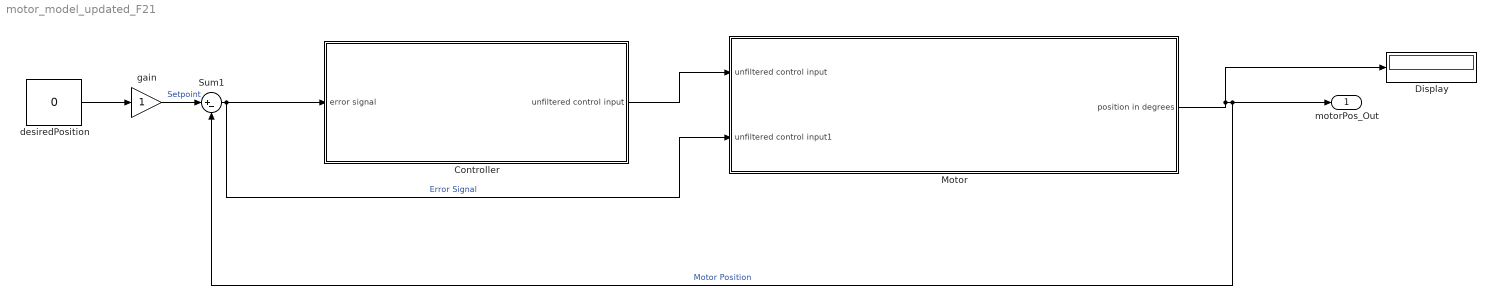
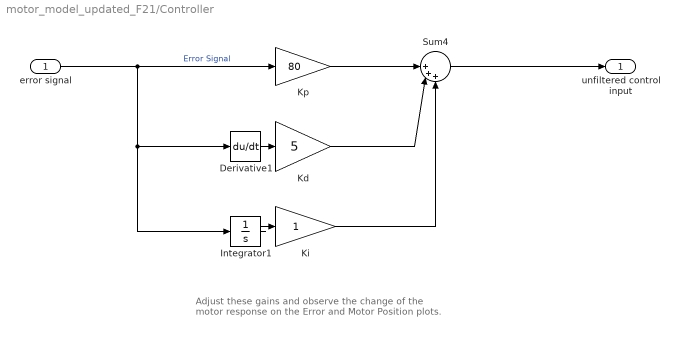
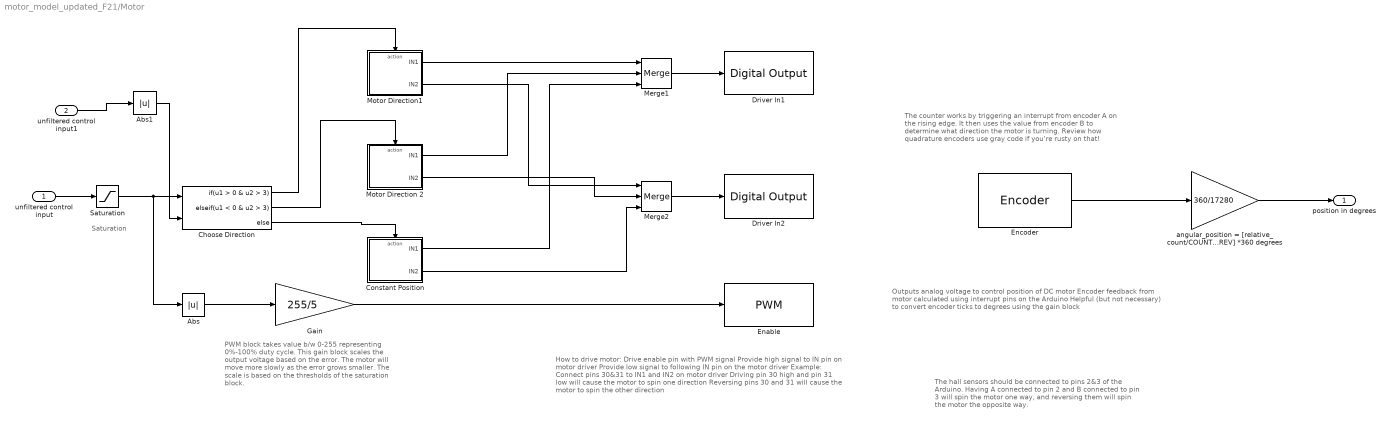
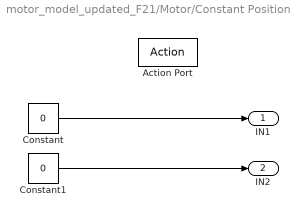
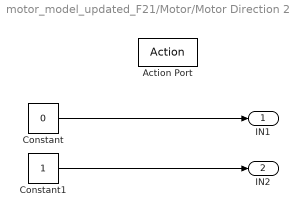
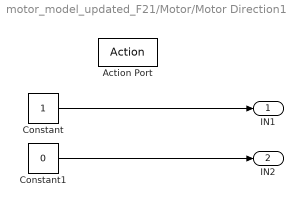
/*
 * motor_model_updated_F21.c
 *
 * Academic License - for use in teaching, academic research, and meeting
 * course requirements at degree granting institutions only.  Not for
 * government, commercial, or other organizational use.
 *
 * Code generation for model "motor_model_updated_F21".
 *
 * Model version              : 4.9
 * Simulink Coder version : 9.6 (R2021b) 14-May-2021
 * C source code generated on : Wed Mar 16 17:14:59 2022
 *
 * Target selection: ert.tlc
 * Note: GRT includes extra infrastructure and instrumentation for prototyping
 * Embedded hardware selection: Atmel->AVR
 * Code generation objectives: Unspecified
 * Validation result: Not run
 */

#include "motor_model_updated_F21.h"
#include "motor_model_updated_F21_private.h"

/* Block signals (default storage) */
B_motor_model_updated_F21_T motor_model_updated_F21_B;

/* Continuous states */
X_motor_model_updated_F21_T motor_model_updated_F21_X;

/* Block states (default storage) */
DW_motor_model_updated_F21_T motor_model_updated_F21_DW;

/* External outputs (root outports fed by signals with default storage) */
ExtY_motor_model_updated_F21_T motor_model_updated_F21_Y;

/* Real-time model */
static RT_MODEL_motor_model_updated__T motor_model_updated_F21_M_;
RT_MODEL_motor_model_updated__T *const motor_model_updated_F21_M =
  &motor_model_updated_F21_M_;
const int64m_T motor_model_updated_F21_sfix64_ = { { 0UL, 0UL }/* chunks */
};

void sMultiWordMul(const uint32_T u1[], int16_T n1, const uint32_T u2[], int16_T
                   n2, uint32_T y[], int16_T n)
{
  uint32_T a0;
  uint32_T a1;
  uint32_T b1;
  uint32_T cb;
  uint32_T cb1;
  uint32_T cb2;
  uint32_T u1i;
  uint32_T w01;
  uint32_T w10;
  uint32_T yk;
  int16_T i;
  int16_T j;
  int16_T k;
  int16_T ni;
  boolean_T isNegative1;
  boolean_T isNegative2;
  isNegative1 = ((u1[n1 - 1] & 2147483648UL) != 0UL);
  isNegative2 = ((u2[n2 - 1] & 2147483648UL) != 0UL);
  cb1 = 1UL;

  /* Initialize output to zero */
  for (k = 0; k < n; k++) {
    y[k] = 0UL;
  }

  for (i = 0; i < n1; i++) {
    cb = 0UL;
    u1i = u1[i];
    if (isNegative1) {
      u1i = ~u1i + cb1;
      cb1 = (uint32_T)(u1i < cb1);
    }

    a1 = u1i >> 16U;
    a0 = u1i & 65535UL;
    cb2 = 1UL;
    ni = n - i;
    ni = n2 <= ni ? n2 : ni;
    k = i;
    for (j = 0; j < ni; j++) {
      u1i = u2[j];
      if (isNegative2) {
        u1i = ~u1i + cb2;
        cb2 = (uint32_T)(u1i < cb2);
      }

      b1 = u1i >> 16U;
      u1i &= 65535UL;
      w10 = a1 * u1i;
      w01 = a0 * b1;
      yk = y[k] + cb;
      cb = (uint32_T)(yk < cb);
      u1i *= a0;
      yk += u1i;
      cb += (yk < u1i);
      u1i = w10 << 16U;
      yk += u1i;
      cb += (yk < u1i);
      u1i = w01 << 16U;
      yk += u1i;
      cb += (yk < u1i);
      y[k] = yk;
      cb += w10 >> 16U;
      cb += w01 >> 16U;
      cb += a1 * b1;
      k++;
    }

    if (k < n) {
      y[k] = cb;
    }
  }

  /* Apply sign */
  if (isNegative1 != isNegative2) {
    cb = 1UL;
    for (k = 0; k < n; k++) {
      yk = ~y[k] + cb;
      y[k] = yk;
      cb = (uint32_T)(yk < cb);
    }
  }
}

real_T sMultiWord2Double(const uint32_T u1[], int16_T n1, int16_T e1)
{
  real_T y;
  uint32_T cb;
  uint32_T u1i;
  int16_T exp_0;
  int16_T i;
  y = 0.0;
  exp_0 = e1;
  if ((u1[n1 - 1] & 2147483648UL) != 0UL) {
    cb = 1UL;
    for (i = 0; i < n1; i++) {
      u1i = ~u1[i];
      cb += u1i;
      y -= ldexp(cb, exp_0);
      cb = (uint32_T)(cb < u1i);
      exp_0 += 32;
    }
  } else {
    for (i = 0; i < n1; i++) {
      y += ldexp(u1[i], exp_0);
      exp_0 += 32;
    }
  }

  return y;
}

/*
 * This function updates continuous states using the ODE4 fixed-step
 * solver algorithm
 */
static void rt_ertODEUpdateContinuousStates(RTWSolverInfo *si )
{
  time_T t = rtsiGetT(si);
  time_T tnew = rtsiGetSolverStopTime(si);
  time_T h = rtsiGetStepSize(si);
  real_T *x = rtsiGetContStates(si);
  ODE4_IntgData *id = (ODE4_IntgData *)rtsiGetSolverData(si);
  real_T *y = id->y;
  real_T *f0 = id->f[0];
  real_T *f1 = id->f[1];
  real_T *f2 = id->f[2];
  real_T *f3 = id->f[3];
  real_T temp;
  int_T i;
  int_T nXc = 1;
  rtsiSetSimTimeStep(si,MINOR_TIME_STEP);

  /* Save the state values at time t in y, we'll use x as ynew. */
  (void) memcpy(y, x,
                (uint_T)nXc*sizeof(real_T));

  /* Assumes that rtsiSetT and ModelOutputs are up-to-date */
  /* f0 = f(t,y) */
  rtsiSetdX(si, f0);
  motor_model_updated_F21_derivatives();

  /* f1 = f(t + (h/2), y + (h/2)*f0) */
  temp = 0.5 * h;
  for (i = 0; i < nXc; i++) {
    x[i] = y[i] + (temp*f0[i]);
  }

  rtsiSetT(si, t + temp);
  rtsiSetdX(si, f1);
  motor_model_updated_F21_step();
  motor_model_updated_F21_derivatives();

  /* f2 = f(t + (h/2), y + (h/2)*f1) */
  for (i = 0; i < nXc; i++) {
    x[i] = y[i] + (temp*f1[i]);
  }

  rtsiSetdX(si, f2);
  motor_model_updated_F21_step();
  motor_model_updated_F21_derivatives();

  /* f3 = f(t + h, y + h*f2) */
  for (i = 0; i < nXc; i++) {
    x[i] = y[i] + (h*f2[i]);
  }

  rtsiSetT(si, tnew);
  rtsiSetdX(si, f3);
  motor_model_updated_F21_step();
  motor_model_updated_F21_derivatives();

  /* tnew = t + h
     ynew = y + (h/6)*(f0 + 2*f1 + 2*f2 + 2*f3) */
  temp = h / 6.0;
  for (i = 0; i < nXc; i++) {
    x[i] = y[i] + temp*(f0[i] + 2.0*f1[i] + 2.0*f2[i] + f3[i]);
  }

  rtsiSetSimTimeStep(si,MAJOR_TIME_STEP);
}

/*
 * Output and update for action system:
 *    '<S2>/Motor Direction1'
 *    '<S2>/Motor Direction 2'
 *    '<S2>/Constant Position'
 */
void motor_model_upd_MotorDirection1(RT_MODEL_motor_model_updated__T * const
  motor_model_updated_F21_M, real_T *rty_IN1, real_T *rty_IN2,
  P_MotorDirection1_motor_model_T *localP)
{
  if (rtmIsMajorTimeStep(motor_model_updated_F21_M)) {
    /* Constant: '<S5>/Constant' */
    *rty_IN1 = localP->Constant_Value;

    /* Constant: '<S5>/Constant1' */
    *rty_IN2 = localP->Constant1_Value;
  }
}

real_T rt_roundd_snf(real_T u)
{
  real_T y;
  if (fabs(u) < 4.503599627370496E+15) {
    if (u >= 0.5) {
      y = floor(u + 0.5);
    } else if (u > -0.5) {
      y = u * 0.0;
    } else {
      y = ceil(u - 0.5);
    }
  } else {
    y = u;
  }

  return y;
}

/* Model step function */
void motor_model_updated_F21_step(void)
{
  /* local block i/o variables */
  real_T rtb_Merge1;
  real_T rtb_Merge2;
  if (rtmIsMajorTimeStep(motor_model_updated_F21_M)) {
    /* set solver stop time */
    if (!(motor_model_updated_F21_M->Timing.clockTick0+1)) {
      rtsiSetSolverStopTime(&motor_model_updated_F21_M->solverInfo,
                            ((motor_model_updated_F21_M->Timing.clockTickH0 + 1)
        * motor_model_updated_F21_M->Timing.stepSize0 * 4294967296.0));
    } else {
      rtsiSetSolverStopTime(&motor_model_updated_F21_M->solverInfo,
                            ((motor_model_updated_F21_M->Timing.clockTick0 + 1) *
        motor_model_updated_F21_M->Timing.stepSize0 +
        motor_model_updated_F21_M->Timing.clockTickH0 *
        motor_model_updated_F21_M->Timing.stepSize0 * 4294967296.0));
    }
  }                                    /* end MajorTimeStep */

  /* Update absolute time of base rate at minor time step */
  if (rtmIsMinorTimeStep(motor_model_updated_F21_M)) {
    motor_model_updated_F21_M->Timing.t[0] = rtsiGetT
      (&motor_model_updated_F21_M->solverInfo);
  }

  {
    codertarget_arduinobase_inter_T *obj;
    int64m_T *tmp_2;
    real_T rtb_Abs1;
    real_T *lastU;
    int32_T rtb_Encoder_0;
    uint32_T tmp;
    uint32_T tmp_0;
    uint8_T tmp_1;

    /* Reset subsysRan breadcrumbs */
    srClearBC
      (motor_model_updated_F21_DW.MotorDirection1.MotorDirection1_SubsysRanBC);

    /* MATLABSystem: '<S2>/Encoder' */
    if (motor_model_updated_F21_DW.obj.SampleTime !=
        motor_model_updated_F21_P.Encoder_SampleTime) {
      motor_model_updated_F21_DW.obj.SampleTime =
        motor_model_updated_F21_P.Encoder_SampleTime;
    }

    if (motor_model_updated_F21_DW.obj.TunablePropsChanged) {
      motor_model_updated_F21_DW.obj.TunablePropsChanged = false;
    }

    MW_EncoderRead(motor_model_updated_F21_DW.obj.Index, &rtb_Encoder_0);

    /* Gain: '<S2>/angular_position =  [relative_count//COUNTS_PER_REV] *360 degrees' incorporates:
     *  MATLABSystem: '<S2>/Encoder'
     */
    tmp = (uint32_T)motor_model_updated_F21_P.angular_positionrelative_countC;
    tmp_0 = (uint32_T)rtb_Encoder_0;
    sMultiWordMul(&tmp, 1, &tmp_0, 1,
                  &motor_model_updated_F21_B.angular_positionrelative_countC.chunks
                  [0U], 2);

    /* Outport: '<Root>/motorPos_Out' incorporates:
     *  Gain: '<S2>/angular_position =  [relative_count//COUNTS_PER_REV] *360 degrees'
     */
    motor_model_updated_F21_Y.motorPos_Out =
      motor_model_updated_F21_B.angular_positionrelative_countC;
    if (rtmIsMajorTimeStep(motor_model_updated_F21_M)) {
      /* Gain: '<Root>/gain' incorporates:
       *  Constant: '<Root>/desiredPosition'
       */
      motor_model_updated_F21_B.Setpoint = motor_model_updated_F21_P.gain_Gain *
        motor_model_updated_F21_P.desiredPosition_Value;
    }

    /* Sum: '<Root>/Sum1' incorporates:
     *  Gain: '<S2>/angular_position =  [relative_count//COUNTS_PER_REV] *360 degrees'
     */
    tmp_2 = &motor_model_updated_F21_B.angular_positionrelative_countC;

    /* Sum: '<Root>/Sum1' */
    motor_model_updated_F21_B.ErrorSignal = motor_model_updated_F21_B.Setpoint -
      sMultiWord2Double(&tmp_2->chunks[0U], 2, 0) * 1.4551915228366852E-11;

    /* Derivative: '<S1>/Derivative1' */
    motor_model_updated_F21_B.Abs = motor_model_updated_F21_M->Timing.t[0];
    if ((motor_model_updated_F21_DW.TimeStampA >= motor_model_updated_F21_B.Abs)
        && (motor_model_updated_F21_DW.TimeStampB >=
            motor_model_updated_F21_B.Abs)) {
      motor_model_updated_F21_B.Abs = 0.0;
    } else {
      rtb_Abs1 = motor_model_updated_F21_DW.TimeStampA;
      lastU = &motor_model_updated_F21_DW.LastUAtTimeA;
      if (motor_model_updated_F21_DW.TimeStampA <
          motor_model_updated_F21_DW.TimeStampB) {
        if (motor_model_updated_F21_DW.TimeStampB <
            motor_model_updated_F21_B.Abs) {
          rtb_Abs1 = motor_model_updated_F21_DW.TimeStampB;
          lastU = &motor_model_updated_F21_DW.LastUAtTimeB;
        }
      } else if (motor_model_updated_F21_DW.TimeStampA >=
                 motor_model_updated_F21_B.Abs) {
        rtb_Abs1 = motor_model_updated_F21_DW.TimeStampB;
        lastU = &motor_model_updated_F21_DW.LastUAtTimeB;
      }

      motor_model_updated_F21_B.Abs = (motor_model_updated_F21_B.ErrorSignal -
        *lastU) / (motor_model_updated_F21_B.Abs - rtb_Abs1);
    }

    /* End of Derivative: '<S1>/Derivative1' */

    /* Sum: '<S1>/Sum4' incorporates:
     *  Gain: '<S1>/Kd'
     *  Gain: '<S1>/Ki'
     *  Gain: '<S1>/Kp'
     *  Integrator: '<S1>/Integrator1'
     */
    motor_model_updated_F21_B.Abs = (motor_model_updated_F21_P.Kp_Gain *
      motor_model_updated_F21_B.ErrorSignal + motor_model_updated_F21_P.Kd_Gain *
      motor_model_updated_F21_B.Abs) + motor_model_updated_F21_P.Ki_Gain *
      motor_model_updated_F21_X.Integrator1_CSTATE;

    /* Saturate: '<S2>/Saturation' */
    if (motor_model_updated_F21_B.Abs >
        motor_model_updated_F21_P.Saturation_UpperSat) {
      motor_model_updated_F21_B.Abs =
        motor_model_updated_F21_P.Saturation_UpperSat;
    } else if (motor_model_updated_F21_B.Abs <
               motor_model_updated_F21_P.Saturation_LowerSat) {
      motor_model_updated_F21_B.Abs =
        motor_model_updated_F21_P.Saturation_LowerSat;
    }

    /* End of Saturate: '<S2>/Saturation' */

    /* Abs: '<S2>/Abs1' */
    rtb_Abs1 = fabs(motor_model_updated_F21_B.ErrorSignal);

    /* If: '<S2>/Choose Direction' */
    if (rtmIsMajorTimeStep(motor_model_updated_F21_M)) {
      if ((motor_model_updated_F21_B.Abs > 0.0) && (rtb_Abs1 > 3.0)) {
        motor_model_updated_F21_DW.ChooseDirection_ActiveSubsystem = 0;
      } else if ((motor_model_updated_F21_B.Abs < 0.0) && (rtb_Abs1 > 3.0)) {
        motor_model_updated_F21_DW.ChooseDirection_ActiveSubsystem = 1;
      } else {
        motor_model_updated_F21_DW.ChooseDirection_ActiveSubsystem = 2;
      }
    }

    switch (motor_model_updated_F21_DW.ChooseDirection_ActiveSubsystem) {
     case 0:
      /* Outputs for IfAction SubSystem: '<S2>/Motor Direction1' incorporates:
       *  ActionPort: '<S5>/Action Port'
       */
      motor_model_upd_MotorDirection1(motor_model_updated_F21_M, &rtb_Merge1,
        &rtb_Merge2, &motor_model_updated_F21_P.MotorDirection1);
      if (rtmIsMajorTimeStep(motor_model_updated_F21_M)) {
        srUpdateBC
          (motor_model_updated_F21_DW.MotorDirection1.MotorDirection1_SubsysRanBC);
      }

      /* End of Outputs for SubSystem: '<S2>/Motor Direction1' */
      break;

     case 1:
      /* Outputs for IfAction SubSystem: '<S2>/Motor Direction 2' incorporates:
       *  ActionPort: '<S4>/Action Port'
       */
      motor_model_upd_MotorDirection1(motor_model_updated_F21_M, &rtb_Merge1,
        &rtb_Merge2, &motor_model_updated_F21_P.MotorDirection2);
      if (rtmIsMajorTimeStep(motor_model_updated_F21_M)) {
        srUpdateBC
          (motor_model_updated_F21_DW.MotorDirection2.MotorDirection1_SubsysRanBC);
      }

      /* End of Outputs for SubSystem: '<S2>/Motor Direction 2' */
      break;

     case 2:
      /* Outputs for IfAction SubSystem: '<S2>/Constant Position' incorporates:
       *  ActionPort: '<S3>/Action Port'
       */
      motor_model_upd_MotorDirection1(motor_model_updated_F21_M, &rtb_Merge1,
        &rtb_Merge2, &motor_model_updated_F21_P.ConstantPosition);
      if (rtmIsMajorTimeStep(motor_model_updated_F21_M)) {
        srUpdateBC
          (motor_model_updated_F21_DW.ConstantPosition.MotorDirection1_SubsysRanBC);
      }

      /* End of Outputs for SubSystem: '<S2>/Constant Position' */
      break;
    }

    /* End of If: '<S2>/Choose Direction' */

    /* MATLABSystem: '<S2>/Enable' */
    obj = &motor_model_updated_F21_DW.obj_b;
    obj->PWMDriverObj.MW_PWM_HANDLE = MW_PWM_GetHandle(5UL);

    /* Gain: '<S2>/Gain' incorporates:
     *  Abs: '<S2>/Abs'
     */
    motor_model_updated_F21_B.Abs = motor_model_updated_F21_P.Gain_Gain * fabs
      (motor_model_updated_F21_B.Abs);

    /* MATLABSystem: '<S2>/Enable' */
    if (!(motor_model_updated_F21_B.Abs <= 255.0)) {
      motor_model_updated_F21_B.Abs = 255.0;
    }

    if (!(motor_model_updated_F21_B.Abs >= 0.0)) {
      motor_model_updated_F21_B.Abs = 0.0;
    }

    MW_PWM_SetDutyCycle
      (motor_model_updated_F21_DW.obj_b.PWMDriverObj.MW_PWM_HANDLE,
       motor_model_updated_F21_B.Abs);
    if (rtmIsMajorTimeStep(motor_model_updated_F21_M)) {
      /* MATLABSystem: '<S2>/Driver In1' */
      motor_model_updated_F21_B.Abs = rt_roundd_snf(rtb_Merge1);
      if (motor_model_updated_F21_B.Abs < 256.0) {
        if (motor_model_updated_F21_B.Abs >= 0.0) {
          tmp_1 = (uint8_T)motor_model_updated_F21_B.Abs;
        } else {
          tmp_1 = 0U;
        }
      } else {
        tmp_1 = MAX_uint8_T;
      }

      writeDigitalPin(30, tmp_1);

      /* End of MATLABSystem: '<S2>/Driver In1' */

      /* MATLABSystem: '<S2>/Driver In2' */
      motor_model_updated_F21_B.Abs = rt_roundd_snf(rtb_Merge2);
      if (motor_model_updated_F21_B.Abs < 256.0) {
        if (motor_model_updated_F21_B.Abs >= 0.0) {
          tmp_1 = (uint8_T)motor_model_updated_F21_B.Abs;
        } else {
          tmp_1 = 0U;
        }
      } else {
        tmp_1 = MAX_uint8_T;
      }

      writeDigitalPin(31, tmp_1);

      /* End of MATLABSystem: '<S2>/Driver In2' */
    }
  }

  if (rtmIsMajorTimeStep(motor_model_updated_F21_M)) {
    real_T *lastU;

    /* Update for Derivative: '<S1>/Derivative1' */
    if (motor_model_updated_F21_DW.TimeStampA == (rtInf)) {
      motor_model_updated_F21_DW.TimeStampA =
        motor_model_updated_F21_M->Timing.t[0];
      lastU = &motor_model_updated_F21_DW.LastUAtTimeA;
    } else if (motor_model_updated_F21_DW.TimeStampB == (rtInf)) {
      motor_model_updated_F21_DW.TimeStampB =
        motor_model_updated_F21_M->Timing.t[0];
      lastU = &motor_model_updated_F21_DW.LastUAtTimeB;
    } else if (motor_model_updated_F21_DW.TimeStampA <
               motor_model_updated_F21_DW.TimeStampB) {
      motor_model_updated_F21_DW.TimeStampA =
        motor_model_updated_F21_M->Timing.t[0];
      lastU = &motor_model_updated_F21_DW.LastUAtTimeA;
    } else {
      motor_model_updated_F21_DW.TimeStampB =
        motor_model_updated_F21_M->Timing.t[0];
      lastU = &motor_model_updated_F21_DW.LastUAtTimeB;
    }

    *lastU = motor_model_updated_F21_B.ErrorSignal;

    /* End of Update for Derivative: '<S1>/Derivative1' */
    {                                  /* Sample time: [0.0s, 0.0s] */
      extmodeErrorCode_T errorCode = EXTMODE_SUCCESS;
      extmodeSimulationTime_T currentTime = (extmodeSimulationTime_T)
        (((motor_model_updated_F21_M->Timing.clockTick0+
           motor_model_updated_F21_M->Timing.clockTickH0* 4294967296.0) * 1) + 0)
        ;

      /* Trigger External Mode event */
      errorCode = extmodeEvent(0,currentTime);
      if (errorCode != EXTMODE_SUCCESS) {
        /* Code to handle External Mode event errors
           may be added here */
      }
    }

    if (rtmIsMajorTimeStep(motor_model_updated_F21_M)) {/* Sample time: [0.001s, 0.0s] */
      extmodeErrorCode_T errorCode = EXTMODE_SUCCESS;
      extmodeSimulationTime_T currentTime = (extmodeSimulationTime_T)
        (((motor_model_updated_F21_M->Timing.clockTick1+
           motor_model_updated_F21_M->Timing.clockTickH1* 4294967296.0) * 1) + 0)
        ;

      /* Trigger External Mode event */
      errorCode = extmodeEvent(1,currentTime);
      if (errorCode != EXTMODE_SUCCESS) {
        /* Code to handle External Mode event errors
           may be added here */
      }
    }
  }                                    /* end MajorTimeStep */

  if (rtmIsMajorTimeStep(motor_model_updated_F21_M)) {
    rt_ertODEUpdateContinuousStates(&motor_model_updated_F21_M->solverInfo);

    /* Update absolute time for base rate */
    /* The "clockTick0" counts the number of times the code of this task has
     * been executed. The absolute time is the multiplication of "clockTick0"
     * and "Timing.stepSize0". Size of "clockTick0" ensures timer will not
     * overflow during the application lifespan selected.
     * Timer of this task consists of two 32 bit unsigned integers.
     * The two integers represent the low bits Timing.clockTick0 and the high bits
     * Timing.clockTickH0. When the low bit overflows to 0, the high bits increment.
     */
    if (!(++motor_model_updated_F21_M->Timing.clockTick0)) {
      ++motor_model_updated_F21_M->Timing.clockTickH0;
    }

    motor_model_updated_F21_M->Timing.t[0] = rtsiGetSolverStopTime
      (&motor_model_updated_F21_M->solverInfo);

    {
      /* Update absolute timer for sample time: [0.001s, 0.0s] */
      /* The "clockTick1" counts the number of times the code of this task has
       * been executed. The resolution of this integer timer is 0.001, which is the step size
       * of the task. Size of "clockTick1" ensures timer will not overflow during the
       * application lifespan selected.
       * Timer of this task consists of two 32 bit unsigned integers.
       * The two integers represent the low bits Timing.clockTick1 and the high bits
       * Timing.clockTickH1. When the low bit overflows to 0, the high bits increment.
       */
      motor_model_updated_F21_M->Timing.clockTick1++;
      if (!motor_model_updated_F21_M->Timing.clockTick1) {
        motor_model_updated_F21_M->Timing.clockTickH1++;
      }
    }
  }                                    /* end MajorTimeStep */
}
